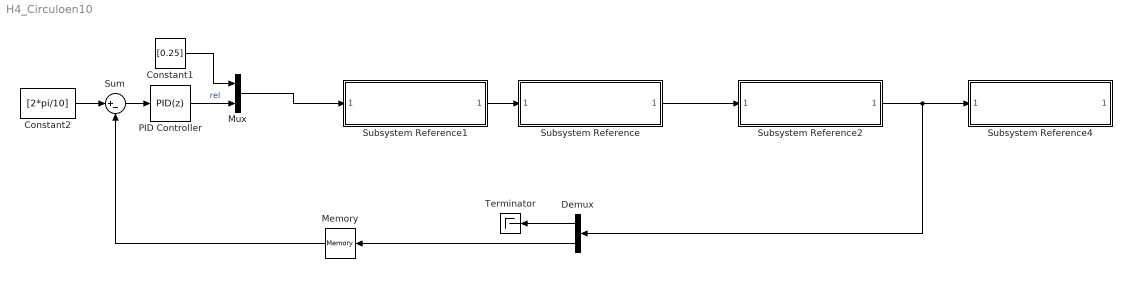
/*
 * Academic License - for use in teaching, academic research, and meeting
 * course requirements at degree granting institutions only.  Not for
 * government, commercial, or other organizational use.
 *
 * File: H4_Circuloen10.c
 *
 * Code generated for Simulink model 'H4_Circuloen10'.
 *
 * Model version                  : 1.19
 * Simulink Coder version         : 23.2 (R2023b) 01-Aug-2023
 * C/C++ source code generated on : Thu Dec 21 14:42:21 2023
 *
 * Target selection: ert.tlc
 * Embedded hardware selection: Atmel->AVR
 * Code generation objectives: Unspecified
 * Validation result: Not run
 */

#include "H4_Circuloen10.h"
#include <math.h>
#include "rt_nonfinite.h"
#include "rtwtypes.h"
#include "H4_Circuloen10_private.h"

/* Block states (default storage) */
DW_H4_Circuloen10_T H4_Circuloen10_DW;

/* Real-time model */
static RT_MODEL_H4_Circuloen10_T H4_Circuloen10_M_;
RT_MODEL_H4_Circuloen10_T *const H4_Circuloen10_M = &H4_Circuloen10_M_;

/* Model step function */
void H4_Circuloen10_step(void)
{
  real_T rtb_FilterCoefficient;
  real_T rtb_Gain_idx_0;
  real_T rtb_Gain_idx_1;
  real_T rtb_Sum_p;
  real_T rtb_TSamp_idx_0;
  real_T rtb_TSamp_idx_1;
  int32_T rtb_Encoder1_0;
  int32_T rtb_Encoder_0;
  int16_T rtb_DataTypeConversion_idx_0;
  int16_T rtb_DataTypeConversion_idx_1;
  int16_T y;

  /* Sum: '<Root>/Sum' incorporates:
   *  Constant: '<Root>/Constant2'
   *  Memory: '<Root>/Memory'
   */
  rtb_Sum_p = H4_Circuloen10_P.Constant2_Value -
    H4_Circuloen10_DW.Memory_PreviousInput;

  /* Gain: '<S40>/Filter Coefficient' incorporates:
   *  DiscreteIntegrator: '<S32>/Filter'
   *  Gain: '<S31>/Derivative Gain'
   *  Sum: '<S32>/SumD'
   */
  rtb_FilterCoefficient = (H4_Circuloen10_P.PIDController_D * rtb_Sum_p -
    H4_Circuloen10_DW.Filter_DSTATE) * H4_Circuloen10_P.PIDController_N;

  /* SignalConversion generated from: '<S3>/Matrix Multiply' incorporates:
   *  DiscreteIntegrator: '<S37>/Integrator'
   *  Gain: '<S42>/Proportional Gain'
   *  Sum: '<S46>/Sum'
   */
  rtb_Gain_idx_1 = (H4_Circuloen10_P.PIDController_P * rtb_Sum_p +
                    H4_Circuloen10_DW.Integrator_DSTATE) + rtb_FilterCoefficient;

  /* Sum: '<S2>/Sum' incorporates:
   *  Constant: '<Root>/Constant1'
   *  Constant: '<S3>/Constant'
   *  Memory: '<S2>/Memory'
   *  Product: '<S3>/Matrix Multiply'
   */
  rtb_Gain_idx_0 = (H4_Circuloen10_P.Constant_Value[0] *
                    H4_Circuloen10_P.Constant1_Value +
                    H4_Circuloen10_P.Constant_Value[2] * rtb_Gain_idx_1) -
    H4_Circuloen10_DW.Memory_PreviousInput_f[0];
  rtb_Gain_idx_1 = (H4_Circuloen10_P.Constant_Value[1] *
                    H4_Circuloen10_P.Constant1_Value +
                    H4_Circuloen10_P.Constant_Value[3] * rtb_Gain_idx_1) -
    H4_Circuloen10_DW.Memory_PreviousInput_f[1];

  /* Sum: '<S146>/Sum' incorporates:
   *  DiscreteIntegrator: '<S137>/Integrator'
   *  Gain: '<S142>/Proportional Gain'
   */
  rtb_TSamp_idx_0 = H4_Circuloen10_P.PIDController2_P * rtb_Gain_idx_0 +
    H4_Circuloen10_DW.Integrator_DSTATE_he;

  /* Saturate: '<S144>/Saturation' */
  if (rtb_TSamp_idx_0 > H4_Circuloen10_P.PIDController2_UpperSaturationL) {
    rtb_TSamp_idx_0 = H4_Circuloen10_P.PIDController2_UpperSaturationL;
  } else if (rtb_TSamp_idx_0 < H4_Circuloen10_P.PIDController2_LowerSaturationL)
  {
    rtb_TSamp_idx_0 = H4_Circuloen10_P.PIDController2_LowerSaturationL;
  }

  /* DataTypeConversion: '<S55>/Data Type Conversion' incorporates:
   *  Saturate: '<S144>/Saturation'
   */
  rtb_TSamp_idx_0 = floor(rtb_TSamp_idx_0);
  if (rtIsNaN(rtb_TSamp_idx_0) || rtIsInf(rtb_TSamp_idx_0)) {
    rtb_TSamp_idx_0 = 0.0;
  } else {
    rtb_TSamp_idx_0 = fmod(rtb_TSamp_idx_0, 65536.0);
  }

  rtb_DataTypeConversion_idx_0 = rtb_TSamp_idx_0 < 0.0 ? -(int16_T)(uint16_T)
    -rtb_TSamp_idx_0 : (int16_T)(uint16_T)rtb_TSamp_idx_0;

  /* Sum: '<S98>/Sum' incorporates:
   *  DiscreteIntegrator: '<S89>/Integrator'
   *  Gain: '<S94>/Proportional Gain'
   */
  rtb_TSamp_idx_0 = H4_Circuloen10_P.PIDController1_P * rtb_Gain_idx_1 +
    H4_Circuloen10_DW.Integrator_DSTATE_h;

  /* Saturate: '<S96>/Saturation' */
  if (rtb_TSamp_idx_0 > H4_Circuloen10_P.PIDController1_UpperSaturationL) {
    rtb_TSamp_idx_0 = H4_Circuloen10_P.PIDController1_UpperSaturationL;
  } else if (rtb_TSamp_idx_0 < H4_Circuloen10_P.PIDController1_LowerSaturationL)
  {
    rtb_TSamp_idx_0 = H4_Circuloen10_P.PIDController1_LowerSaturationL;
  }

  /* DataTypeConversion: '<S55>/Data Type Conversion' incorporates:
   *  Saturate: '<S96>/Saturation'
   */
  rtb_TSamp_idx_0 = floor(rtb_TSamp_idx_0);
  if (rtIsNaN(rtb_TSamp_idx_0) || rtIsInf(rtb_TSamp_idx_0)) {
    rtb_TSamp_idx_0 = 0.0;
  } else {
    rtb_TSamp_idx_0 = fmod(rtb_TSamp_idx_0, 65536.0);
  }

  rtb_DataTypeConversion_idx_1 = rtb_TSamp_idx_0 < 0.0 ? -(int16_T)(uint16_T)
    -rtb_TSamp_idx_0 : (int16_T)(uint16_T)rtb_TSamp_idx_0;

  /* MATLABSystem: '<S156>/Adelante_der' */
  H4_Circuloen10_DW.obj_b.PWMDriverObj.MW_PWM_HANDLE = MW_PWM_GetHandle(12UL);

  /* Saturate: '<S156>/Saturation2' */
  if (rtb_DataTypeConversion_idx_1 > H4_Circuloen10_P.Saturation2_UpperSat) {
    y = H4_Circuloen10_P.Saturation2_UpperSat;
  } else if (rtb_DataTypeConversion_idx_1 <
             H4_Circuloen10_P.Saturation2_LowerSat) {
    y = H4_Circuloen10_P.Saturation2_LowerSat;
  } else {
    y = rtb_DataTypeConversion_idx_1;
  }

  /* End of Saturate: '<S156>/Saturation2' */

  /* Start for MATLABSystem: '<S156>/Adelante_der' */
  if (y > 255) {
    y = 255;
  }

  if (y < 0) {
    y = 0;
  }

  /* MATLABSystem: '<S156>/Adelante_der' */
  MW_PWM_SetDutyCycle(H4_Circuloen10_DW.obj_b.PWMDriverObj.MW_PWM_HANDLE,
                      (real_T)y);

  /* MATLABSystem: '<S156>/Adelante_izq' */
  H4_Circuloen10_DW.obj_j.PWMDriverObj.MW_PWM_HANDLE = MW_PWM_GetHandle(9UL);

  /* Saturate: '<S156>/Saturation4' */
  if (rtb_DataTypeConversion_idx_0 > H4_Circuloen10_P.Saturation4_UpperSat) {
    y = H4_Circuloen10_P.Saturation4_UpperSat;
  } else if (rtb_DataTypeConversion_idx_0 <
             H4_Circuloen10_P.Saturation4_LowerSat) {
    y = H4_Circuloen10_P.Saturation4_LowerSat;
  } else {
    y = rtb_DataTypeConversion_idx_0;
  }

  /* End of Saturate: '<S156>/Saturation4' */

  /* Abs: '<S156>/Abs2' */
  if (y < 0) {
    y = -y;
  }

  /* End of Abs: '<S156>/Abs2' */

  /* Start for MATLABSystem: '<S156>/Adelante_izq' */
  if (y > 255) {
    y = 255;
  }

  if (y < 0) {
    y = 0;
  }

  /* MATLABSystem: '<S156>/Adelante_izq' */
  MW_PWM_SetDutyCycle(H4_Circuloen10_DW.obj_j.PWMDriverObj.MW_PWM_HANDLE,
                      (real_T)y);

  /* MATLABSystem: '<S156>/Atras_der' */
  H4_Circuloen10_DW.obj_e.PWMDriverObj.MW_PWM_HANDLE = MW_PWM_GetHandle(11UL);

  /* Saturate: '<S156>/Saturation3' */
  if (rtb_DataTypeConversion_idx_1 > H4_Circuloen10_P.Saturation3_UpperSat) {
    y = H4_Circuloen10_P.Saturation3_UpperSat;
  } else if (rtb_DataTypeConversion_idx_1 <
             H4_Circuloen10_P.Saturation3_LowerSat) {
    y = H4_Circuloen10_P.Saturation3_LowerSat;
  } else {
    y = rtb_DataTypeConversion_idx_1;
  }

  /* End of Saturate: '<S156>/Saturation3' */

  /* Abs: '<S156>/Abs1' */
  if (y < 0) {
    y = -y;
  }

  /* End of Abs: '<S156>/Abs1' */

  /* Start for MATLABSystem: '<S156>/Atras_der' */
  if (y > 255) {
    y = 255;
  }

  if (y < 0) {
    y = 0;
  }

  /* MATLABSystem: '<S156>/Atras_der' */
  MW_PWM_SetDutyCycle(H4_Circuloen10_DW.obj_e.PWMDriverObj.MW_PWM_HANDLE,
                      (real_T)y);

  /* MATLABSystem: '<S156>/Atras_izq' */
  H4_Circuloen10_DW.obj_g.PWMDriverObj.MW_PWM_HANDLE = MW_PWM_GetHandle(10UL);

  /* Saturate: '<S156>/Saturation5' */
  if (rtb_DataTypeConversion_idx_0 > H4_Circuloen10_P.Saturation5_UpperSat) {
    y = H4_Circuloen10_P.Saturation5_UpperSat;
  } else if (rtb_DataTypeConversion_idx_0 <
             H4_Circuloen10_P.Saturation5_LowerSat) {
    y = H4_Circuloen10_P.Saturation5_LowerSat;
  } else {
    y = rtb_DataTypeConversion_idx_0;
  }

  /* End of Saturate: '<S156>/Saturation5' */

  /* Start for MATLABSystem: '<S156>/Atras_izq' */
  if (y > 255) {
    y = 255;
  }

  if (y < 0) {
    y = 0;
  }

  /* MATLABSystem: '<S156>/Atras_izq' */
  MW_PWM_SetDutyCycle(H4_Circuloen10_DW.obj_g.PWMDriverObj.MW_PWM_HANDLE,
                      (real_T)y);

  /* MATLABSystem: '<S156>/Digital Output' incorporates:
   *  Constant: '<S158>/Constant'
   *  RelationalOperator: '<S158>/Compare'
   */
  writeDigitalPin(8, (uint8_T)(rtb_DataTypeConversion_idx_0 !=
    H4_Circuloen10_P.Constant_Value_c));

  /* MATLABSystem: '<S156>/Digital Output1' incorporates:
   *  Constant: '<S159>/Constant'
   *  RelationalOperator: '<S159>/Compare'
   */
  writeDigitalPin(13, (uint8_T)(rtb_DataTypeConversion_idx_1 !=
    H4_Circuloen10_P.Constant_Value_d));

  /* MATLABSystem: '<S155>/Encoder' */
  if (H4_Circuloen10_DW.obj_p.SampleTime != H4_Circuloen10_P.Encoder_SampleTime)
  {
    H4_Circuloen10_DW.obj_p.SampleTime = H4_Circuloen10_P.Encoder_SampleTime;
  }

  if (H4_Circuloen10_DW.obj_p.TunablePropsChanged) {
    H4_Circuloen10_DW.obj_p.TunablePropsChanged = false;
  }

  MW_EncoderRead(H4_Circuloen10_DW.obj_p.Index, &rtb_Encoder_0);

  /* MATLABSystem: '<S155>/Encoder1' */
  if (H4_Circuloen10_DW.obj.SampleTime != H4_Circuloen10_P.Encoder1_SampleTime)
  {
    H4_Circuloen10_DW.obj.SampleTime = H4_Circuloen10_P.Encoder1_SampleTime;
  }

  if (H4_Circuloen10_DW.obj.TunablePropsChanged) {
    H4_Circuloen10_DW.obj.TunablePropsChanged = false;
  }

  MW_EncoderRead(H4_Circuloen10_DW.obj.Index, &rtb_Encoder1_0);

  /* Gain: '<S155>/Gain' */
  rtb_TSamp_idx_1 = (real_T)H4_Circuloen10_P.Gain_Gain * 1.1368683772161603E-13;

  /* SampleTimeMath: '<S157>/TSamp' incorporates:
   *  Gain: '<S155>/Gain'
   *  MATLABSystem: '<S155>/Encoder'
   *  MATLABSystem: '<S155>/Encoder1'
   *
   * About '<S157>/TSamp':
   *  y = u * K where K = 1 / ( w * Ts )
   */
  rtb_TSamp_idx_0 = rtb_TSamp_idx_1 * (real_T)rtb_Encoder_0 *
    H4_Circuloen10_P.TSamp_WtEt;
  rtb_TSamp_idx_1 = rtb_TSamp_idx_1 * (real_T)rtb_Encoder1_0 *
    H4_Circuloen10_P.TSamp_WtEt;

  /* Gain: '<S154>/Gain1' incorporates:
   *  Sum: '<S157>/Diff'
   *  UnitDelay: '<S157>/UD'
   *
   * Block description for '<S157>/Diff':
   *
   *  Add in CPU
   *
   * Block description for '<S157>/UD':
   *
   *  Store in Global RAM
   */
  H4_Circuloen10_DW.Memory_PreviousInput_f[0] = (rtb_TSamp_idx_0 -
    H4_Circuloen10_DW.UD_DSTATE[0]) * H4_Circuloen10_P.Gain1_Gain[0];
  H4_Circuloen10_DW.Memory_PreviousInput_f[1] = (rtb_TSamp_idx_1 -
    H4_Circuloen10_DW.UD_DSTATE[1]) * H4_Circuloen10_P.Gain1_Gain[1];

  /* Update for DiscreteIntegrator: '<S37>/Integrator' incorporates:
   *  Gain: '<S34>/Integral Gain'
   */
  H4_Circuloen10_DW.Integrator_DSTATE += H4_Circuloen10_P.PIDController_I *
    rtb_Sum_p * H4_Circuloen10_P.Integrator_gainval;

  /* Update for DiscreteIntegrator: '<S32>/Filter' */
  H4_Circuloen10_DW.Filter_DSTATE += H4_Circuloen10_P.Filter_gainval *
    rtb_FilterCoefficient;

  /* Update for DiscreteIntegrator: '<S89>/Integrator' incorporates:
   *  Gain: '<S86>/Integral Gain'
   */
  H4_Circuloen10_DW.Integrator_DSTATE_h += H4_Circuloen10_P.PIDController1_I *
    rtb_Gain_idx_1 * H4_Circuloen10_P.Integrator_gainval_d;

  /* Update for DiscreteIntegrator: '<S137>/Integrator' incorporates:
   *  Gain: '<S134>/Integral Gain'
   */
  H4_Circuloen10_DW.Integrator_DSTATE_he += H4_Circuloen10_P.PIDController2_I *
    rtb_Gain_idx_0 * H4_Circuloen10_P.Integrator_gainval_i;

  /* Update for UnitDelay: '<S157>/UD'
   *
   * Block description for '<S157>/UD':
   *
   *  Store in Global RAM
   */
  H4_Circuloen10_DW.UD_DSTATE[0] = rtb_TSamp_idx_0;
  H4_Circuloen10_DW.UD_DSTATE[1] = rtb_TSamp_idx_1;

  /* Update for Memory: '<Root>/Memory' incorporates:
   *  Constant: '<S4>/Constant'
   *  Product: '<S4>/Matrix Multiply'
   */
  H4_Circuloen10_DW.Memory_PreviousInput =
    H4_Circuloen10_DW.Memory_PreviousInput_f[0] *
    H4_Circuloen10_P.Constant_Value_b[1] +
    H4_Circuloen10_DW.Memory_PreviousInput_f[1] *
    H4_Circuloen10_P.Constant_Value_b[3];
}
